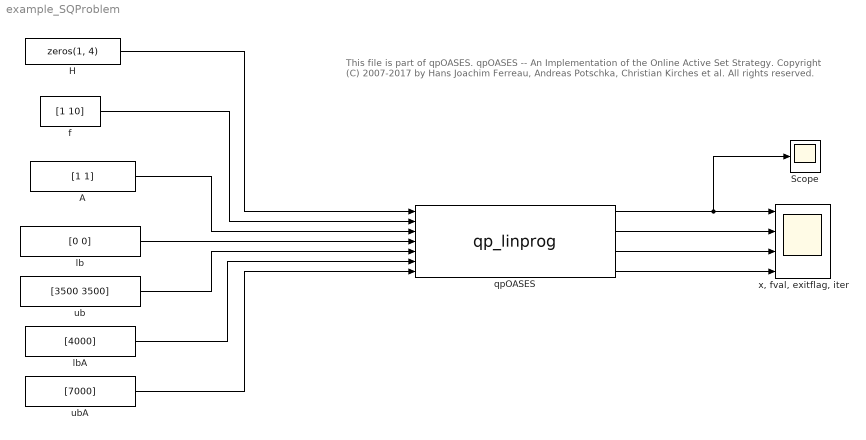
/*
 * example_SQProblem.c
 *
 * Code generation for model "example_SQProblem".
 *
 * Model version              : 1.73
 * Simulink Coder version : 8.12 (R2017a) 16-Feb-2017
 * C source code generated on : Mon Jun 18 17:09:16 2018
 *
 * Target selection: grt.tlc
 * Note: GRT includes extra infrastructure and instrumentation for prototyping
 * Embedded hardware selection: 32-bit Generic
 * Code generation objectives: Unspecified
 * Validation result: Not run
 */

#include "example_SQProblem.h"
#include "example_SQProblem_private.h"

/* Block signals (auto storage) */
B_example_SQProblem_T example_SQProblem_B;

/* Block states (auto storage) */
DW_example_SQProblem_T example_SQProblem_DW;

/* Real-time model */
RT_MODEL_example_SQProblem_T example_SQProblem_M_;
RT_MODEL_example_SQProblem_T *const example_SQProblem_M = &example_SQProblem_M_;

/* Model output function */
static void example_SQProblem_output(void)
{
  /* Constant: '<Root>/H' */
  example_SQProblem_B.H[0] = example_SQProblem_P.H_Value[0];
  example_SQProblem_B.H[1] = example_SQProblem_P.H_Value[1];
  example_SQProblem_B.H[2] = example_SQProblem_P.H_Value[2];
  example_SQProblem_B.H[3] = example_SQProblem_P.H_Value[3];

  /* Constant: '<Root>/f' */
  example_SQProblem_B.f[0] = example_SQProblem_P.f_Value[0];

  /* Constant: '<Root>/A' */
  example_SQProblem_B.A[0] = example_SQProblem_P.A_Value[0];

  /* Constant: '<Root>/lb' */
  example_SQProblem_B.lb[0] = example_SQProblem_P.lb_Value[0];

  /* Constant: '<Root>/ub' */
  example_SQProblem_B.ub[0] = example_SQProblem_P.ub_Value[0];

  /* Constant: '<Root>/f' */
  example_SQProblem_B.f[1] = example_SQProblem_P.f_Value[1];

  /* Constant: '<Root>/A' */
  example_SQProblem_B.A[1] = example_SQProblem_P.A_Value[1];

  /* Constant: '<Root>/lb' */
  example_SQProblem_B.lb[1] = example_SQProblem_P.lb_Value[1];

  /* Constant: '<Root>/ub' */
  example_SQProblem_B.ub[1] = example_SQProblem_P.ub_Value[1];

  /* Constant: '<Root>/lbA' */
  example_SQProblem_B.lbA = example_SQProblem_P.lbA_Value;

  /* Constant: '<Root>/ubA' */
  example_SQProblem_B.ubA = example_SQProblem_P.ubA_Value;

  /* S-Function (qp_linprog): '<Root>/qpOASES' */

  /* Level2 S-Function Block: '<Root>/qpOASES' (qp_linprog) */
  {
    SimStruct *rts = example_SQProblem_M->childSfunctions[0];
    sfcnOutputs(rts,0);
  }
}

/* Model update function */
static void example_SQProblem_update(void)
{
  /* Update absolute time for base rate */
  /* The "clockTick0" counts the number of times the code of this task has
   * been executed. The absolute time is the multiplication of "clockTick0"
   * and "Timing.stepSize0". Size of "clockTick0" ensures timer will not
   * overflow during the application lifespan selected.
   * Timer of this task consists of two 32 bit unsigned integers.
   * The two integers represent the low bits Timing.clockTick0 and the high bits
   * Timing.clockTickH0. When the low bit overflows to 0, the high bits increment.
   */
  if (!(++example_SQProblem_M->Timing.clockTick0)) {
    ++example_SQProblem_M->Timing.clockTickH0;
  }

  example_SQProblem_M->Timing.t[0] = example_SQProblem_M->Timing.clockTick0 *
    example_SQProblem_M->Timing.stepSize0 +
    example_SQProblem_M->Timing.clockTickH0 *
    example_SQProblem_M->Timing.stepSize0 * 4294967296.0;
}
